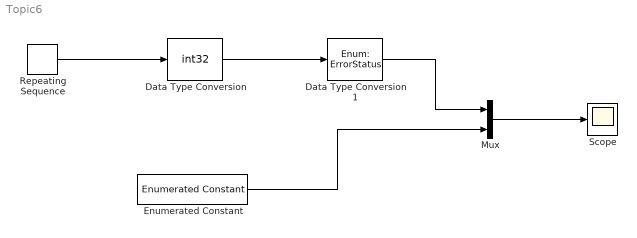
/*
 * Topic6.c
 *
 * Code generation for model "Topic6".
 *
 * Model version              : 1.2
 * Simulink Coder version : 9.0 (R2018b) 24-May-2018
 * C source code generated on : Tue Apr  5 17:10:37 2022
 *
 * Target selection: grt.tlc
 * Note: GRT includes extra infrastructure and instrumentation for prototyping
 * Embedded hardware selection: Intel->x86-64 (Windows64)
 * Code generation objectives: Unspecified
 * Validation result: Not run
 */

#include "Topic6.h"
#include "Topic6_private.h"

/* Block signals (default storage) */
B_Topic6_T Topic6_B;

/* Block states (default storage) */
DW_Topic6_T Topic6_DW;

/* Real-time model */
RT_MODEL_Topic6_T Topic6_M_;
RT_MODEL_Topic6_T *const Topic6_M = &Topic6_M_;
real_T look1_binlxpw(real_T u0, const real_T bp0[], const real_T table[],
                     uint32_T maxIndex)
{
  real_T frac;
  uint32_T iRght;
  uint32_T iLeft;
  uint32_T bpIdx;

  /* Column-major Lookup 1-D
     Search method: 'binary'
     Use previous index: 'off'
     Interpolation method: 'Linear point-slope'
     Extrapolation method: 'Linear'
     Use last breakpoint for index at or above upper limit: 'off'
     Remove protection against out-of-range input in generated code: 'off'
   */
  /* Prelookup - Index and Fraction
     Index Search method: 'binary'
     Extrapolation method: 'Linear'
     Use previous index: 'off'
     Use last breakpoint for index at or above upper limit: 'off'
     Remove protection against out-of-range input in generated code: 'off'
   */
  if (u0 <= bp0[0U]) {
    iLeft = 0U;
    frac = (u0 - bp0[0U]) / (bp0[1U] - bp0[0U]);
  } else if (u0 < bp0[maxIndex]) {
    /* Binary Search */
    bpIdx = maxIndex >> 1U;
    iLeft = 0U;
    iRght = maxIndex;
    while (iRght - iLeft > 1U) {
      if (u0 < bp0[bpIdx]) {
        iRght = bpIdx;
      } else {
        iLeft = bpIdx;
      }

      bpIdx = (iRght + iLeft) >> 1U;
    }

    frac = (u0 - bp0[iLeft]) / (bp0[iLeft + 1U] - bp0[iLeft]);
  } else {
    iLeft = maxIndex - 1U;
    frac = (u0 - bp0[maxIndex - 1U]) / (bp0[maxIndex] - bp0[maxIndex - 1U]);
  }

  /* Column-major Interpolation 1-D
     Interpolation method: 'Linear point-slope'
     Use last breakpoint for index at or above upper limit: 'off'
     Overflow mode: 'portable wrapping'
   */
  return (table[iLeft + 1U] - table[iLeft]) * frac + table[iLeft];
}

real_T rt_remd_snf(real_T u0, real_T u1)
{
  real_T y;
  real_T q;
  if (rtIsNaN(u0) || rtIsInf(u0) || (rtIsNaN(u1) || rtIsInf(u1))) {
    y = (rtNaN);
  } else if ((u1 != 0.0) && (u1 != trunc(u1))) {
    q = fabs(u0 / u1);
    if (fabs(q - floor(q + 0.5)) <= DBL_EPSILON * q) {
      y = 0.0 * u0;
    } else {
      y = fmod(u0, u1);
    }
  } else {
    y = fmod(u0, u1);
  }

  return y;
}

/* Model step function */
void Topic6_step(void)
{
  real_T tmp;

  /* DataTypeConversion: '<Root>/Data Type  Conversion' incorporates:
   *  Clock: '<S2>/Clock'
   *  Constant: '<S2>/Constant'
   *  Lookup_n-D: '<S2>/Look-Up Table1'
   *  Math: '<S2>/Math Function'
   *  S-Function (sfun_tstart): '<S2>/startTime'
   *  Sum: '<S2>/Sum'
   */
  tmp = floor(look1_binlxpw(rt_remd_snf(Topic6_M->Timing.t[0] - (0.0),
    Topic6_P.Constant_Value), Topic6_P.LookUpTable1_bp01Data,
    Topic6_P.RepeatingSequence_rep_seq_y, 4U));
  if (rtIsNaN(tmp) || rtIsInf(tmp)) {
    tmp = 0.0;
  } else {
    tmp = fmod(tmp, 4.294967296E+9);
  }

  /* DataTypeConversion: '<Root>/Data Type  Conversion1' incorporates:
   *  DataTypeConversion: '<Root>/Data Type  Conversion'
   */
  Topic6_B.DataTypeConversion1 = (ErrorStatus)(tmp < 0.0 ? -(int32_T)(uint32_T)
    -tmp : (int32_T)(uint32_T)tmp);

  /* Matfile logging */
  rt_UpdateTXYLogVars(Topic6_M->rtwLogInfo, (Topic6_M->Timing.t));

  /* signal main to stop simulation */
  {                                    /* Sample time: [0.0s, 0.0s] */
    if ((rtmGetTFinal(Topic6_M)!=-1) &&
        !((rtmGetTFinal(Topic6_M)-Topic6_M->Timing.t[0]) > Topic6_M->Timing.t[0]
          * (DBL_EPSILON))) {
      rtmSetErrorStatus(Topic6_M, "Simulation finished");
    }
  }

  /* Update absolute time for base rate */
  /* The "clockTick0" counts the number of times the code of this task has
   * been executed. The absolute time is the multiplication of "clockTick0"
   * and "Timing.stepSize0". Size of "clockTick0" ensures timer will not
   * overflow during the application lifespan selected.
   * Timer of this task consists of two 32 bit unsigned integers.
   * The two integers represent the low bits Timing.clockTick0 and the high bits
   * Timing.clockTickH0. When the low bit overflows to 0, the high bits increment.
   */
  if (!(++Topic6_M->Timing.clockTick0)) {
    ++Topic6_M->Timing.clockTickH0;
  }

  Topic6_M->Timing.t[0] = Topic6_M->Timing.clockTick0 *
    Topic6_M->Timing.stepSize0 + Topic6_M->Timing.clockTickH0 *
    Topic6_M->Timing.stepSize0 * 4294967296.0;

  {
    /* Update absolute timer for sample time: [0.2s, 0.0s] */
    /* The "clockTick1" counts the number of times the code of this task has
     * been executed. The resolution of this integer timer is 0.2, which is the step size
     * of the task. Size of "clockTick1" ensures timer will not overflow during the
     * application lifespan selected.
     * Timer of this task consists of two 32 bit unsigned integers.
     * The two integers represent the low bits Timing.clockTick1 and the high bits
     * Timing.clockTickH1. When the low bit overflows to 0, the high bits increment.
     */
    Topic6_M->Timing.clockTick1++;
    if (!Topic6_M->Timing.clockTick1) {
      Topic6_M->Timing.clockTickH1++;
    }
  }
}
